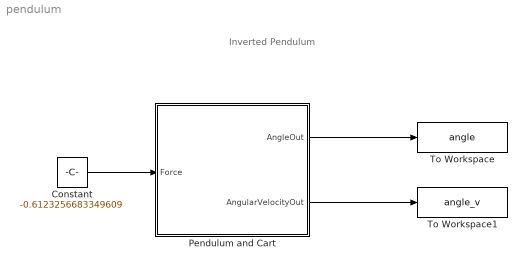
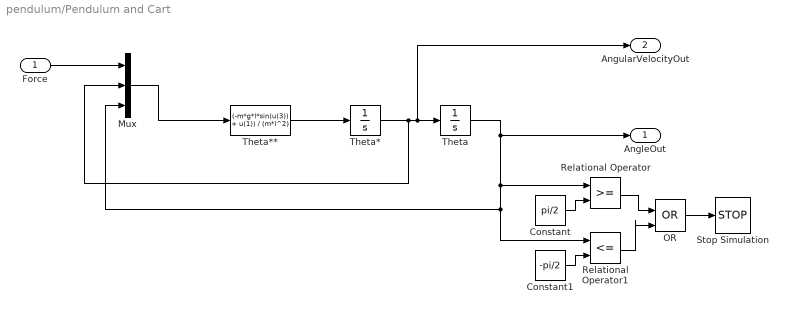
/*
 * pendulum.c
 *
 * Academic License - for use in teaching, academic research, and meeting
 * course requirements at degree granting institutions only.  Not for
 * government, commercial, or other organizational use.
 *
 * Code generation for model "pendulum".
 *
 * Model version              : 2.12
 * Simulink Coder version : 24.2 (R2024b) 21-Jun-2024
 * C source code generated on : Fri Oct  3 15:40:17 2025
 *
 * Target selection: grt.tlc
 * Note: GRT includes extra infrastructure and instrumentation for prototyping
 * Embedded hardware selection: Intel->x86-64 (Windows64)
 * Code generation objectives: Unspecified
 * Validation result: Not run
 */

#include "pendulum.h"
#include <math.h>
#include "rtwtypes.h"
#include "pendulum_private.h"
#include <string.h>

/* Block signals (default storage) */
B_pendulum_T pendulum_B;

/* Continuous states */
X_pendulum_T pendulum_X;

/* Disabled State Vector */
XDis_pendulum_T pendulum_XDis;

/* Block states (default storage) */
DW_pendulum_T pendulum_DW;

/* Real-time model */
static RT_MODEL_pendulum_T pendulum_M_;
RT_MODEL_pendulum_T *const pendulum_M = &pendulum_M_;

/*
 * This function updates continuous states using the ODE1 fixed-step
 * solver algorithm
 */
static void rt_ertODEUpdateContinuousStates(RTWSolverInfo *si )
{
  time_T tnew = rtsiGetSolverStopTime(si);
  time_T h = rtsiGetStepSize(si);
  real_T *x = rtsiGetContStates(si);
  ODE1_IntgData *id = (ODE1_IntgData *)rtsiGetSolverData(si);
  real_T *f0 = id->f[0];
  int_T i;
  int_T nXc = 2;
  rtsiSetSimTimeStep(si,MINOR_TIME_STEP);
  rtsiSetdX(si, f0);
  pendulum_derivatives();
  rtsiSetT(si, tnew);
  for (i = 0; i < nXc; ++i) {
    x[i] += h * f0[i];
  }

  rtsiSetSimTimeStep(si,MAJOR_TIME_STEP);
}

/* Model step function */
void pendulum_step(void)
{
  boolean_T tmp;
  if (rtmIsMajorTimeStep(pendulum_M)) {
    /* set solver stop time */
    if (!(pendulum_M->Timing.clockTick0+1)) {
      rtsiSetSolverStopTime(&pendulum_M->solverInfo,
                            ((pendulum_M->Timing.clockTickH0 + 1) *
        pendulum_M->Timing.stepSize0 * 4294967296.0));
    } else {
      rtsiSetSolverStopTime(&pendulum_M->solverInfo,
                            ((pendulum_M->Timing.clockTick0 + 1) *
        pendulum_M->Timing.stepSize0 + pendulum_M->Timing.clockTickH0 *
        pendulum_M->Timing.stepSize0 * 4294967296.0));
    }
  }                                    /* end MajorTimeStep */

  /* Update absolute time of base rate at minor time step */
  if (rtmIsMinorTimeStep(pendulum_M)) {
    pendulum_M->Timing.t[0] = rtsiGetT(&pendulum_M->solverInfo);
  }

  /* Integrator: '<S1>/Theta' */
  pendulum_B.Theta = pendulum_X.Theta_CSTATE;
  tmp = rtmIsMajorTimeStep(pendulum_M);
  if (tmp) {
    /* ToWorkspace: '<Root>/To Workspace' */
    if (rtmIsMajorTimeStep(pendulum_M)) {
      rt_UpdateLogVar((LogVar *)(LogVar*)
                      (pendulum_DW.ToWorkspace_PWORK.LoggedData),
                      &pendulum_B.Theta, 0);
    }
  }

  /* Integrator: '<S1>/Theta+' */
  pendulum_B.Theta_l = pendulum_X.Theta_CSTATE_a;
  if (tmp) {
    /* ToWorkspace: '<Root>/To Workspace1' */
    if (rtmIsMajorTimeStep(pendulum_M)) {
      rt_UpdateLogVar((LogVar *)(LogVar*)
                      (pendulum_DW.ToWorkspace1_PWORK.LoggedData),
                      &pendulum_B.Theta_l, 0);
    }
  }

  /* Logic: '<S1>/OR' incorporates:
   *  Constant: '<S1>/Constant'
   *  Constant: '<S1>/Constant1'
   *  RelationalOperator: '<S1>/Relational Operator'
   *  RelationalOperator: '<S1>/Relational Operator1'
   */
  pendulum_B.OR = ((pendulum_B.Theta >= pendulum_P.Constant_Value_i) ||
                   (pendulum_B.Theta <= pendulum_P.Constant1_Value));
  if (tmp) {
    /* Stop: '<S1>/Stop Simulation' */
    if (pendulum_B.OR) {
      rtmSetStopRequested(pendulum_M, 1);
    }

    /* End of Stop: '<S1>/Stop Simulation' */
  }

  /* Fcn: '<S1>/Theta*+' incorporates:
   *  Constant: '<Root>/Constant'
   */
  pendulum_B.Theta_j = (-0.29400000000000004 * sin(pendulum_B.Theta) +
                        pendulum_P.Constant_Value) / 0.0045;
  if (rtmIsMajorTimeStep(pendulum_M)) {
    /* Matfile logging */
    rt_UpdateTXYLogVars(pendulum_M->rtwLogInfo, (pendulum_M->Timing.t));
  }                                    /* end MajorTimeStep */

  if (rtmIsMajorTimeStep(pendulum_M)) {
    /* signal main to stop simulation */
    {                                  /* Sample time: [0.0s, 0.0s] */
      if ((rtmGetTFinal(pendulum_M)!=-1) &&
          !((rtmGetTFinal(pendulum_M)-(((pendulum_M->Timing.clockTick1+
               pendulum_M->Timing.clockTickH1* 4294967296.0)) * 0.01)) >
            (((pendulum_M->Timing.clockTick1+pendulum_M->Timing.clockTickH1*
               4294967296.0)) * 0.01) * (DBL_EPSILON))) {
        rtmSetErrorStatus(pendulum_M, "Simulation finished");
      }
    }

    rt_ertODEUpdateContinuousStates(&pendulum_M->solverInfo);

    /* Update absolute time for base rate */
    /* The "clockTick0" counts the number of times the code of this task has
     * been executed. The absolute time is the multiplication of "clockTick0"
     * and "Timing.stepSize0". Size of "clockTick0" ensures timer will not
     * overflow during the application lifespan selected.
     * Timer of this task consists of two 32 bit unsigned integers.
     * The two integers represent the low bits Timing.clockTick0 and the high bits
     * Timing.clockTickH0. When the low bit overflows to 0, the high bits increment.
     */
    if (!(++pendulum_M->Timing.clockTick0)) {
      ++pendulum_M->Timing.clockTickH0;
    }

    pendulum_M->Timing.t[0] = rtsiGetSolverStopTime(&pendulum_M->solverInfo);

    {
      /* Update absolute timer for sample time: [0.01s, 0.0s] */
      /* The "clockTick1" counts the number of times the code of this task has
       * been executed. The resolution of this integer timer is 0.01, which is the step size
       * of the task. Size of "clockTick1" ensures timer will not overflow during the
       * application lifespan selected.
       * Timer of this task consists of two 32 bit unsigned integers.
       * The two integers represent the low bits Timing.clockTick1 and the high bits
       * Timing.clockTickH1. When the low bit overflows to 0, the high bits increment.
       */
      pendulum_M->Timing.clockTick1++;
      if (!pendulum_M->Timing.clockTick1) {
        pendulum_M->Timing.clockTickH1++;
      }
    }
  }                                    /* end MajorTimeStep */
}
